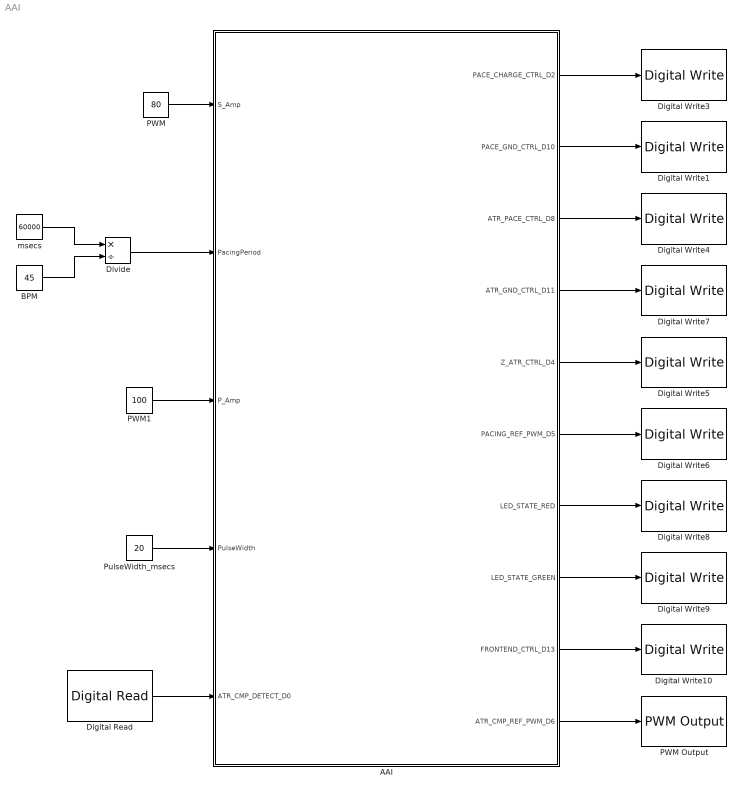
== stateflow chart AAI/AAI ==
  state Pacing
    entry:
    PACING_REF_PWM_D5 = P_Amp;
    PACE_CHARGE_CTRL_D2=0;
    ATR_PACE_CTRL_D8= 1;
    ATR_GND_CTRL_D11= 0;
    PACE_GND_CTRL_D10=1;
    Z_ATR_CTRL_D4=0;
    LED_STATE_RED=false;
    LED_STATE_GREEN=true;
  state Charging_and_Sensing
    entry:
    PACING_REF_PWM_D5 = P_Amp;
    PACE_CHARGE_CTRL_D2=1;
    ATR_PACE_CTRL_D8= 0;
    ATR_GND_CTRL_D11= 1;
    PACE_GND_CTRL_D10=0;
    Z_ATR_CTRL_D4=0;
    LED_STATE_RED=true;
    LED_STATE_GREEN=false;
    FRONTEND_CTRL_D13 = 1;
    ATR_CMP_REF_PWM_D6 = S_Amp;
  (default) -> Charging_and_Sensing
  Pacing -> Charging_and_Sensing : after(PulseWidth,msec)
  Charging_and_Sensing -> (junction 85)
  (junction 85) -> Pacing [order 2] : after(PacingPeriod-PulseWidth,msec)[ATR_CMP_DETECT_D0 == 0]
  (junction 85) -> Charging_and_Sensing [order 1] : [ATR_CMP_DETECT_D0 == 1]
  data: S_Amp input; PacingPeriod input; A_Atrium local; V_Ventricle local; I_Inhibited local; O_None local; VENT_CMP_DETECT_D1 local; VENT_CMP_REF_PWM_D3 local; Z_VENT_CTRL_D7 local; VENT_PACE_CTRL_D9 local; VENT_GND_CTRL_D12 local; GND local; VENT_RECT_SIGNAL_A4_SDA local; ATR_RECT_SIGNAL_A3 local; Z_SIGNAL_A2 local; VENT_SIGNAL_A1 local; ATR_SIGNAL_A0 local; PACE_CHARGE_CTRL_D2 output; PACE_GND_CTRL_D10 output; ATR_PACE_CTRL_D8 output; ATR_GND_CTRL_D11 output; Z_ATR_CTRL_D4 output; PACING_REF_PWM_D5 output; P_Amp input; PulseWidth input; LED_STATE_RED output; LED_STATE_GREEN output; FRONTEND_CTRL_D13 output; ATR_CMP_DETECT_D0 input; ATR_CMP_REF_PWM_D6 output

/*
 * Academic License - for use in teaching, academic research, and meeting
 * course requirements at degree granting institutions only.  Not for
 * government, commercial, or other organizational use.
 *
 * File: AAI.c
 *
 * Code generated for Simulink model 'AAI'.
 *
 * Model version                  : 1.21
 * Simulink Coder version         : 23.2 (R2023b) 01-Aug-2023
 * C/C++ source code generated on : Sun Oct 15 22:13:18 2023
 *
 * Target selection: ert.tlc
 * Embedded hardware selection: ARM Compatible->ARM Cortex
 * Code generation objectives: Unspecified
 * Validation result: Not run
 */

#include "AAI.h"
#include "rtwtypes.h"
#include <math.h>

/* Named constants for Chart: '<Root>/AAI' */
#define AAI_IN_Charging_and_Sensing    ((uint8_T)1U)
#define AAI_IN_Pacing                  ((uint8_T)2U)

/* Block signals (default storage) */
B_AAI_T AAI_B;

/* Block states (default storage) */
DW_AAI_T AAI_DW;

/* Real-time model */
static RT_MODEL_AAI_T AAI_M_;
RT_MODEL_AAI_T *const AAI_M = &AAI_M_;

/* Model step function */
void AAI_step(void)
{
  int32_T rtb_ATR_GND_CTRL_D11;
  int32_T rtb_ATR_PACE_CTRL_D8;
  int32_T rtb_PACE_CHARGE_CTRL_D2;
  int32_T rtb_PACE_GND_CTRL_D10;
  boolean_T rtb_DigitalRead_0;
  boolean_T rtb_LED_STATE_GREEN;
  boolean_T rtb_LED_STATE_RED;

  /* MATLABSystem: '<Root>/Digital Read' */
  if (AAI_DW.obj.SampleTime != AAI_P.DigitalRead_SampleTime) {
    AAI_DW.obj.SampleTime = AAI_P.DigitalRead_SampleTime;
  }

  rtb_DigitalRead_0 = MW_digitalIO_read(AAI_DW.obj.MW_DIGITALIO_HANDLE);

  /* Chart: '<Root>/AAI' incorporates:
   *  Constant: '<Root>/BPM'
   *  Constant: '<Root>/PWM'
   *  Constant: '<Root>/PWM1'
   *  Constant: '<Root>/PulseWidth_msecs'
   *  Constant: '<Root>/msecs'
   *  MATLABSystem: '<Root>/Digital Read'
   *  Product: '<Root>/Divide'
   */
  if (AAI_DW.temporalCounter_i1 < MAX_uint32_T) {
    AAI_DW.temporalCounter_i1++;
  }

  if (AAI_DW.is_active_c1_AAI == 0U) {
    AAI_DW.is_active_c1_AAI = 1U;
    AAI_DW.temporalCounter_i1 = 0U;
    AAI_DW.is_c1_AAI = AAI_IN_Charging_and_Sensing;
    AAI_B.PACING_REF_PWM_D5 = AAI_P.PWM1_Value;
    rtb_PACE_CHARGE_CTRL_D2 = 1;
    rtb_ATR_PACE_CTRL_D8 = 0;
    rtb_ATR_GND_CTRL_D11 = 1;
    rtb_PACE_GND_CTRL_D10 = 0;
    rtb_LED_STATE_RED = true;
    rtb_LED_STATE_GREEN = false;
    AAI_B.FRONTEND_CTRL_D13 = 1.0;
    AAI_B.ATR_CMP_REF_PWM_D6 = AAI_P.PWM_Value;
  } else if (AAI_DW.is_c1_AAI == AAI_IN_Charging_and_Sensing) {
    rtb_PACE_CHARGE_CTRL_D2 = 1;
    rtb_ATR_PACE_CTRL_D8 = 0;
    rtb_ATR_GND_CTRL_D11 = 1;
    rtb_PACE_GND_CTRL_D10 = 0;
    rtb_LED_STATE_RED = true;
    rtb_LED_STATE_GREEN = false;
    AAI_B.FRONTEND_CTRL_D13 = 1.0;
    if (rtb_DigitalRead_0) {
      AAI_DW.temporalCounter_i1 = 0U;
      AAI_B.PACING_REF_PWM_D5 = AAI_P.PWM1_Value;
      AAI_B.ATR_CMP_REF_PWM_D6 = AAI_P.PWM_Value;
    } else if (AAI_DW.temporalCounter_i1 >= (uint32_T)ceil(AAI_P.msecs_Value /
                AAI_P.BPM_Value - AAI_P.PulseWidth_msecs_Value)) {
      AAI_DW.temporalCounter_i1 = 0U;
      AAI_DW.is_c1_AAI = AAI_IN_Pacing;
      AAI_B.PACING_REF_PWM_D5 = AAI_P.PWM1_Value;
      rtb_PACE_CHARGE_CTRL_D2 = 0;
      rtb_ATR_PACE_CTRL_D8 = 1;
      rtb_ATR_GND_CTRL_D11 = 0;
      rtb_PACE_GND_CTRL_D10 = 1;
      rtb_LED_STATE_RED = false;
      rtb_LED_STATE_GREEN = true;
    }
  } else {
    /* case IN_Pacing: */
    rtb_PACE_CHARGE_CTRL_D2 = 0;
    rtb_ATR_PACE_CTRL_D8 = 1;
    rtb_ATR_GND_CTRL_D11 = 0;
    rtb_PACE_GND_CTRL_D10 = 1;
    rtb_LED_STATE_RED = false;
    rtb_LED_STATE_GREEN = true;
    if (AAI_DW.temporalCounter_i1 >= (uint32_T)ceil(AAI_P.PulseWidth_msecs_Value))
    {
      AAI_DW.temporalCounter_i1 = 0U;
      AAI_DW.is_c1_AAI = AAI_IN_Charging_and_Sensing;
      AAI_B.PACING_REF_PWM_D5 = AAI_P.PWM1_Value;
      rtb_PACE_CHARGE_CTRL_D2 = 1;
      rtb_ATR_PACE_CTRL_D8 = 0;
      rtb_ATR_GND_CTRL_D11 = 1;
      rtb_PACE_GND_CTRL_D10 = 0;
      rtb_LED_STATE_RED = true;
      rtb_LED_STATE_GREEN = false;
      AAI_B.FRONTEND_CTRL_D13 = 1.0;
      AAI_B.ATR_CMP_REF_PWM_D6 = AAI_P.PWM_Value;
    }
  }

  /* End of Chart: '<Root>/AAI' */

  /* MATLABSystem: '<Root>/Digital Write1' */
  MW_digitalIO_write(AAI_DW.obj_ib.MW_DIGITALIO_HANDLE, rtb_PACE_GND_CTRL_D10 !=
                     0);

  /* MATLABSystem: '<Root>/Digital Write10' */
  MW_digitalIO_write(AAI_DW.obj_e.MW_DIGITALIO_HANDLE, AAI_B.FRONTEND_CTRL_D13
                     != 0.0);

  /* MATLABSystem: '<Root>/Digital Write3' */
  MW_digitalIO_write(AAI_DW.obj_ix.MW_DIGITALIO_HANDLE, rtb_PACE_CHARGE_CTRL_D2
                     != 0);

  /* MATLABSystem: '<Root>/Digital Write4' */
  MW_digitalIO_write(AAI_DW.obj_n2.MW_DIGITALIO_HANDLE, rtb_ATR_PACE_CTRL_D8 !=
                     0);

  /* MATLABSystem: '<Root>/Digital Write5' */
  MW_digitalIO_write(AAI_DW.obj_j.MW_DIGITALIO_HANDLE, false);

  /* MATLABSystem: '<Root>/Digital Write6' */
  MW_digitalIO_write(AAI_DW.obj_m.MW_DIGITALIO_HANDLE, AAI_B.PACING_REF_PWM_D5
                     != 0.0);

  /* MATLABSystem: '<Root>/Digital Write7' */
  MW_digitalIO_write(AAI_DW.obj_i.MW_DIGITALIO_HANDLE, rtb_ATR_GND_CTRL_D11 != 0);

  /* MATLABSystem: '<Root>/Digital Write8' */
  MW_digitalIO_write(AAI_DW.obj_n.MW_DIGITALIO_HANDLE, rtb_LED_STATE_RED);

  /* MATLABSystem: '<Root>/Digital Write9' */
  MW_digitalIO_write(AAI_DW.obj_l.MW_DIGITALIO_HANDLE, rtb_LED_STATE_GREEN);

  /* MATLABSystem: '<Root>/PWM Output' */
  MW_PWM_SetDutyCycle(AAI_DW.obj_b.MW_PWM_HANDLE, AAI_B.ATR_CMP_REF_PWM_D6);
}
